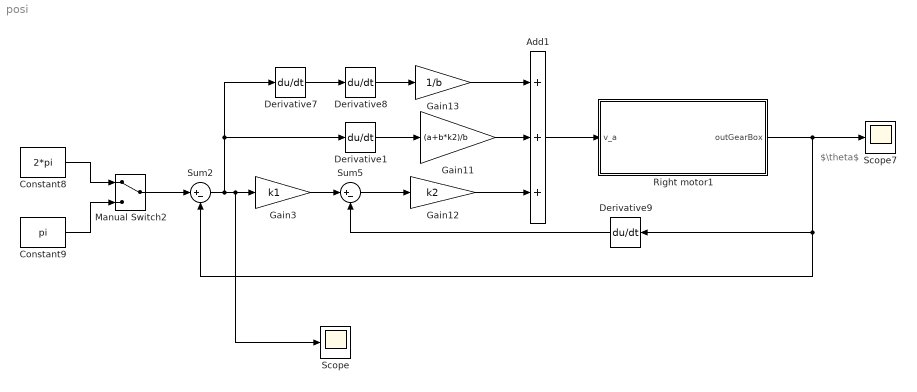
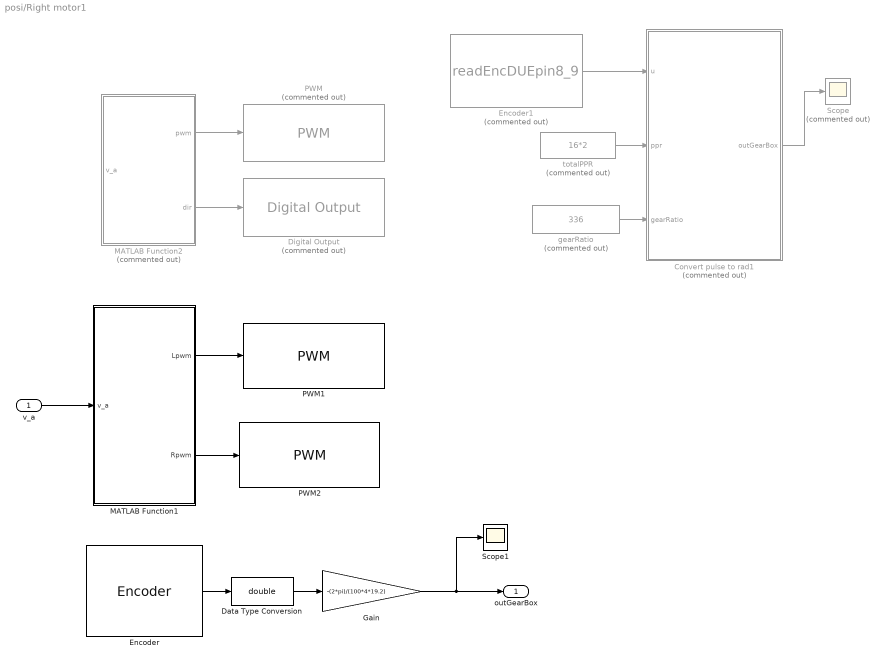
== matlab function posi/Right motor1/Convert pulse to rad1 ==
function outGearBox = fcn(u,ppr,gearRatio)

persistent counter_num over_flag
if(isempty(counter_num)), counter_num = 0;end
if(isempty(over_flag)), over_flag = 0;end
pulse2radian = 2*pi/ppr; % 1 pulse = ?? radian

if(double(u) - counter_num > 40000), over_flag = over_flag-1;
elseif(double(u) - counter_num < -40000), over_flag = over_flag+1;
end

inGearBox = (double(u)+over_flag*(2^32 -1))*pulse2radian; 
outGearBox = inGearBox/gearRatio;
counter_num = double(u) ;

== matlab function posi/Right motor1/MATLAB Function1 ==
function [Lpwm,Rpwm] = fcn(v_a)

vmax = 22.9;
pwm_cal = v_a*254/vmax;

if pwm_cal > 0
    Lpwm = 0;
    Rpwm = pwm_cal;
elseif pwm_cal < 0
    Lpwm = abs(pwm_cal);
    Rpwm = 0;
else
    Lpwm = 0;
    Rpwm = 0;
end

== matlab function posi/Right motor1/MATLAB Function2 ==
function [pwm,dir] = fcn(v_a)

vmax = 22.9;
%vmax = 10;
pwm_cal = v_a*254/vmax;
if pwm_cal > 0
    pwm = pwm_cal;
    dir = 0;
elseif pwm_cal < 0
    pwm = abs(pwm_cal);
    dir = 1;
else
    pwm = 0;
    dir = 0;
end

/*
 * File: posi.c
 *
 * Code generated for Simulink model 'posi'.
 *
 * Model version                  : 1.7
 * Simulink Coder version         : 9.7 (R2022a) 13-Nov-2021
 * C/C++ source code generated on : Mon Jun  5 17:06:02 2023
 *
 * Target selection: ert.tlc
 * Embedded hardware selection: ARM Compatible->ARM Cortex
 * Code generation objectives: Unspecified
 * Validation result: Not run
 */

#include "posi.h"
#include "rtwtypes.h"
#include <math.h>
#include "posi_types.h"
#include "rt_nonfinite.h"
#include "posi_private.h"

/* Block signals (default storage) */
B_posi_T posi_B;

/* Block states (default storage) */
DW_posi_T posi_DW;

/* Real-time model */
static RT_MODEL_posi_T posi_M_;
RT_MODEL_posi_T *const posi_M = &posi_M_;
static void rate_scheduler(void);

/*
 *         This function updates active task flag for each subrate.
 *         The function is called at model base rate, hence the
 *         generated code self-manages all its subrates.
 */
static void rate_scheduler(void)
{
  /* Compute which subrates run during the next base time step.  Subrates
   * are an integer multiple of the base rate counter.  Therefore, the subtask
   * counter is reset when it reaches its limit (zero means run).
   */
  (posi_M->Timing.TaskCounters.TID[2])++;
  if ((posi_M->Timing.TaskCounters.TID[2]) > 9) {/* Sample time: [0.01s, 0.0s] */
    posi_M->Timing.TaskCounters.TID[2] = 0;
  }
}

/* Model step function */
void posi_step(void)
{
  {
    codertarget_arduinobase_int_j_T *obj;
    real_T pwm_cal;
    real_T rtb_Derivative9;
    real_T rtb_Gain11;
    real_T rtb_Gain13;
    real_T *lastU;
    int32_T rtb_Encoder_0;
    if (posi_M->Timing.TaskCounters.TID[2] == 0) {
      /* MATLABSystem: '<S1>/Encoder' */
      if (posi_DW.obj.SampleTime != posi_P.Encoder_SampleTime) {
        posi_DW.obj.SampleTime = posi_P.Encoder_SampleTime;
      }

      if (posi_DW.obj.TunablePropsChanged) {
        posi_DW.obj.TunablePropsChanged = false;
      }

      MW_EncoderRead(posi_DW.obj.Index, &rtb_Encoder_0);

      /* Gain: '<S1>/Gain' incorporates:
       *  DataTypeConversion: '<S1>/Data Type Conversion'
       *  MATLABSystem: '<S1>/Encoder'
       */
      posi_B.Gain = posi_P.Gain_Gain * (real_T)rtb_Encoder_0;
    }

    /* ManualSwitch: '<Root>/Manual Switch2' incorporates:
     *  Constant: '<Root>/Constant8'
     *  Constant: '<Root>/Constant9'
     */
    if (posi_P.ManualSwitch2_CurrentSetting == 1) {
      pwm_cal = posi_P.Constant8_Value;
    } else {
      pwm_cal = posi_P.Constant9_Value;
    }

    /* End of ManualSwitch: '<Root>/Manual Switch2' */

    /* Sum: '<Root>/Sum2' */
    posi_B.Sum2 = pwm_cal - posi_B.Gain;

    /* Derivative: '<Root>/Derivative7' incorporates:
     *  Derivative: '<Root>/Derivative1'
     *  Derivative: '<Root>/Derivative8'
     *  Derivative: '<Root>/Derivative9'
     */
    pwm_cal = posi_M->Timing.t[0];
    if ((posi_DW.TimeStampA >= pwm_cal) && (posi_DW.TimeStampB >= pwm_cal)) {
      /* Derivative: '<Root>/Derivative7' */
      posi_B.Derivative7 = 0.0;
    } else {
      rtb_Derivative9 = posi_DW.TimeStampA;
      lastU = &posi_DW.LastUAtTimeA;
      if (posi_DW.TimeStampA < posi_DW.TimeStampB) {
        if (posi_DW.TimeStampB < pwm_cal) {
          rtb_Derivative9 = posi_DW.TimeStampB;
          lastU = &posi_DW.LastUAtTimeB;
        }
      } else if (posi_DW.TimeStampA >= pwm_cal) {
        rtb_Derivative9 = posi_DW.TimeStampB;
        lastU = &posi_DW.LastUAtTimeB;
      }

      /* Derivative: '<Root>/Derivative7' */
      posi_B.Derivative7 = (posi_B.Sum2 - *lastU) / (pwm_cal - rtb_Derivative9);
    }

    /* End of Derivative: '<Root>/Derivative7' */

    /* Derivative: '<Root>/Derivative8' */
    if ((posi_DW.TimeStampA_a >= pwm_cal) && (posi_DW.TimeStampB_c >= pwm_cal))
    {
      rtb_Derivative9 = 0.0;
    } else {
      rtb_Derivative9 = posi_DW.TimeStampA_a;
      lastU = &posi_DW.LastUAtTimeA_k;
      if (posi_DW.TimeStampA_a < posi_DW.TimeStampB_c) {
        if (posi_DW.TimeStampB_c < pwm_cal) {
          rtb_Derivative9 = posi_DW.TimeStampB_c;
          lastU = &posi_DW.LastUAtTimeB_h;
        }
      } else if (posi_DW.TimeStampA_a >= pwm_cal) {
        rtb_Derivative9 = posi_DW.TimeStampB_c;
        lastU = &posi_DW.LastUAtTimeB_h;
      }

      rtb_Derivative9 = (posi_B.Derivative7 - *lastU) / (pwm_cal -
        rtb_Derivative9);
    }

    /* Gain: '<Root>/Gain13' */
    rtb_Gain13 = 1.0 / posi_P.b * rtb_Derivative9;

    /* Derivative: '<Root>/Derivative1' */
    if ((posi_DW.TimeStampA_i >= pwm_cal) && (posi_DW.TimeStampB_cf >= pwm_cal))
    {
      rtb_Derivative9 = 0.0;
    } else {
      rtb_Derivative9 = posi_DW.TimeStampA_i;
      lastU = &posi_DW.LastUAtTimeA_c;
      if (posi_DW.TimeStampA_i < posi_DW.TimeStampB_cf) {
        if (posi_DW.TimeStampB_cf < pwm_cal) {
          rtb_Derivative9 = posi_DW.TimeStampB_cf;
          lastU = &posi_DW.LastUAtTimeB_b;
        }
      } else if (posi_DW.TimeStampA_i >= pwm_cal) {
        rtb_Derivative9 = posi_DW.TimeStampB_cf;
        lastU = &posi_DW.LastUAtTimeB_b;
      }

      rtb_Derivative9 = (posi_B.Sum2 - *lastU) / (pwm_cal - rtb_Derivative9);
    }

    /* Gain: '<Root>/Gain11' */
    rtb_Gain11 = (posi_P.b * posi_P.k2 + posi_P.a) / posi_P.b * rtb_Derivative9;

    /* Derivative: '<Root>/Derivative9' */
    if ((posi_DW.TimeStampA_b >= pwm_cal) && (posi_DW.TimeStampB_e >= pwm_cal))
    {
      rtb_Derivative9 = 0.0;
    } else {
      rtb_Derivative9 = posi_DW.TimeStampA_b;
      lastU = &posi_DW.LastUAtTimeA_c0;
      if (posi_DW.TimeStampA_b < posi_DW.TimeStampB_e) {
        if (posi_DW.TimeStampB_e < pwm_cal) {
          rtb_Derivative9 = posi_DW.TimeStampB_e;
          lastU = &posi_DW.LastUAtTimeB_e;
        }
      } else if (posi_DW.TimeStampA_b >= pwm_cal) {
        rtb_Derivative9 = posi_DW.TimeStampB_e;
        lastU = &posi_DW.LastUAtTimeB_e;
      }

      rtb_Derivative9 = (posi_B.Gain - *lastU) / (pwm_cal - rtb_Derivative9);
    }

    /* MATLAB Function: '<S1>/MATLAB Function1' incorporates:
     *  Gain: '<Root>/Gain12'
     *  Gain: '<Root>/Gain3'
     *  Sum: '<Root>/Add1'
     *  Sum: '<Root>/Sum5'
     */
    pwm_cal = ((posi_P.k1 * posi_B.Sum2 - rtb_Derivative9) * posi_P.k2 +
               (rtb_Gain13 + rtb_Gain11)) * 254.0 / 22.9;
    if (pwm_cal > 0.0) {
      rtb_Gain13 = 0.0;
    } else if (pwm_cal < 0.0) {
      rtb_Gain13 = fabs(pwm_cal);
      pwm_cal = 0.0;
    } else {
      rtb_Gain13 = 0.0;
      pwm_cal = 0.0;
    }

    /* End of MATLAB Function: '<S1>/MATLAB Function1' */

    /* MATLABSystem: '<S1>/PWM1' */
    obj = &posi_DW.obj_o;
    obj->PWMDriverObj.MW_PWM_HANDLE = MW_PWM_GetHandle(6U);
    if (!(rtb_Gain13 <= 255.0)) {
      rtb_Gain13 = 255.0;
    }

    MW_PWM_SetDutyCycle(posi_DW.obj_o.PWMDriverObj.MW_PWM_HANDLE, rtb_Gain13);

    /* End of MATLABSystem: '<S1>/PWM1' */

    /* MATLABSystem: '<S1>/PWM2' */
    obj = &posi_DW.obj_h;
    obj->PWMDriverObj.MW_PWM_HANDLE = MW_PWM_GetHandle(7U);
    if (!(pwm_cal <= 255.0)) {
      pwm_cal = 255.0;
    }

    MW_PWM_SetDutyCycle(posi_DW.obj_h.PWMDriverObj.MW_PWM_HANDLE, pwm_cal);

    /* End of MATLABSystem: '<S1>/PWM2' */
    if (posi_M->Timing.TaskCounters.TID[2] == 0) {
    }
  }

  {
    real_T *lastU;

    /* Update for Derivative: '<Root>/Derivative7' */
    if (posi_DW.TimeStampA == (rtInf)) {
      posi_DW.TimeStampA = posi_M->Timing.t[0];
      lastU = &posi_DW.LastUAtTimeA;
    } else if (posi_DW.TimeStampB == (rtInf)) {
      posi_DW.TimeStampB = posi_M->Timing.t[0];
      lastU = &posi_DW.LastUAtTimeB;
    } else if (posi_DW.TimeStampA < posi_DW.TimeStampB) {
      posi_DW.TimeStampA = posi_M->Timing.t[0];
      lastU = &posi_DW.LastUAtTimeA;
    } else {
      posi_DW.TimeStampB = posi_M->Timing.t[0];
      lastU = &posi_DW.LastUAtTimeB;
    }

    *lastU = posi_B.Sum2;

    /* End of Update for Derivative: '<Root>/Derivative7' */

    /* Update for Derivative: '<Root>/Derivative8' */
    if (posi_DW.TimeStampA_a == (rtInf)) {
      posi_DW.TimeStampA_a = posi_M->Timing.t[0];
      lastU = &posi_DW.LastUAtTimeA_k;
    } else if (posi_DW.TimeStampB_c == (rtInf)) {
      posi_DW.TimeStampB_c = posi_M->Timing.t[0];
      lastU = &posi_DW.LastUAtTimeB_h;
    } else if (posi_DW.TimeStampA_a < posi_DW.TimeStampB_c) {
      posi_DW.TimeStampA_a = posi_M->Timing.t[0];
      lastU = &posi_DW.LastUAtTimeA_k;
    } else {
      posi_DW.TimeStampB_c = posi_M->Timing.t[0];
      lastU = &posi_DW.LastUAtTimeB_h;
    }

    *lastU = posi_B.Derivative7;

    /* End of Update for Derivative: '<Root>/Derivative8' */

    /* Update for Derivative: '<Root>/Derivative1' */
    if (posi_DW.TimeStampA_i == (rtInf)) {
      posi_DW.TimeStampA_i = posi_M->Timing.t[0];
      lastU = &posi_DW.LastUAtTimeA_c;
    } else if (posi_DW.TimeStampB_cf == (rtInf)) {
      posi_DW.TimeStampB_cf = posi_M->Timing.t[0];
      lastU = &posi_DW.LastUAtTimeB_b;
    } else if (posi_DW.TimeStampA_i < posi_DW.TimeStampB_cf) {
      posi_DW.TimeStampA_i = posi_M->Timing.t[0];
      lastU = &posi_DW.LastUAtTimeA_c;
    } else {
      posi_DW.TimeStampB_cf = posi_M->Timing.t[0];
      lastU = &posi_DW.LastUAtTimeB_b;
    }

    *lastU = posi_B.Sum2;

    /* End of Update for Derivative: '<Root>/Derivative1' */

    /* Update for Derivative: '<Root>/Derivative9' */
    if (posi_DW.TimeStampA_b == (rtInf)) {
      posi_DW.TimeStampA_b = posi_M->Timing.t[0];
      lastU = &posi_DW.LastUAtTimeA_c0;
    } else if (posi_DW.TimeStampB_e == (rtInf)) {
      posi_DW.TimeStampB_e = posi_M->Timing.t[0];
      lastU = &posi_DW.LastUAtTimeB_e;
    } else if (posi_DW.TimeStampA_b < posi_DW.TimeStampB_e) {
      posi_DW.TimeStampA_b = posi_M->Timing.t[0];
      lastU = &posi_DW.LastUAtTimeA_c0;
    } else {
      posi_DW.TimeStampB_e = posi_M->Timing.t[0];
      lastU = &posi_DW.LastUAtTimeB_e;
    }

    *lastU = posi_B.Gain;

    /* End of Update for Derivative: '<Root>/Derivative9' */
  }

  {                                    /* Sample time: [0.0s, 0.0s] */
    extmodeErrorCode_T errorCode = EXTMODE_SUCCESS;
    extmodeSimulationTime_T currentTime = (extmodeSimulationTime_T)
      posi_M->Timing.t[0];

    /* Trigger External Mode event */
    errorCode = extmodeEvent(0,currentTime);
    if (errorCode != EXTMODE_SUCCESS) {
      /* Code to handle External Mode event errors
         may be added here */
    }
  }

  {                                    /* Sample time: [0.001s, 0.0s] */
    extmodeErrorCode_T errorCode = EXTMODE_SUCCESS;
    extmodeSimulationTime_T currentTime = (extmodeSimulationTime_T)
      ((posi_M->Timing.clockTick1) * 0.001);

    /* Trigger External Mode event */
    errorCode = extmodeEvent(1,currentTime);
    if (errorCode != EXTMODE_SUCCESS) {
      /* Code to handle External Mode event errors
         may be added here */
    }
  }

  if (posi_M->Timing.TaskCounters.TID[2] == 0) {/* Sample time: [0.01s, 0.0s] */
    extmodeErrorCode_T errorCode = EXTMODE_SUCCESS;
    extmodeSimulationTime_T currentTime = (extmodeSimulationTime_T)
      ((posi_M->Timing.clockTick2) * 0.01);

    /* Trigger External Mode event */
    errorCode = extmodeEvent(2,currentTime);
    if (errorCode != EXTMODE_SUCCESS) {
      /* Code to handle External Mode event errors
         may be added here */
    }
  }

  /* Update absolute time for base rate */
  /* The "clockTick0" counts the number of times the code of this task has
   * been executed. The absolute time is the multiplication of "clockTick0"
   * and "Timing.stepSize0". Size of "clockTick0" ensures timer will not
   * overflow during the application lifespan selected.
   */
  posi_M->Timing.t[0] =
    ((time_T)(++posi_M->Timing.clockTick0)) * posi_M->Timing.stepSize0;

  {
    /* Update absolute timer for sample time: [0.001s, 0.0s] */
    /* The "clockTick1" counts the number of times the code of this task has
     * been executed. The resolution of this integer timer is 0.001, which is the step size
     * of the task. Size of "clockTick1" ensures timer will not overflow during the
     * application lifespan selected.
     */
    posi_M->Timing.clockTick1++;
  }

  if (posi_M->Timing.TaskCounters.TID[2] == 0) {
    /* Update absolute timer for sample time: [0.01s, 0.0s] */
    /* The "clockTick2" counts the number of times the code of this task has
     * been executed. The resolution of this integer timer is 0.01, which is the step size
     * of the task. Size of "clockTick2" ensures timer will not overflow during the
     * application lifespan selected.
     */
    posi_M->Timing.clockTick2++;
  }

  rate_scheduler();
}
